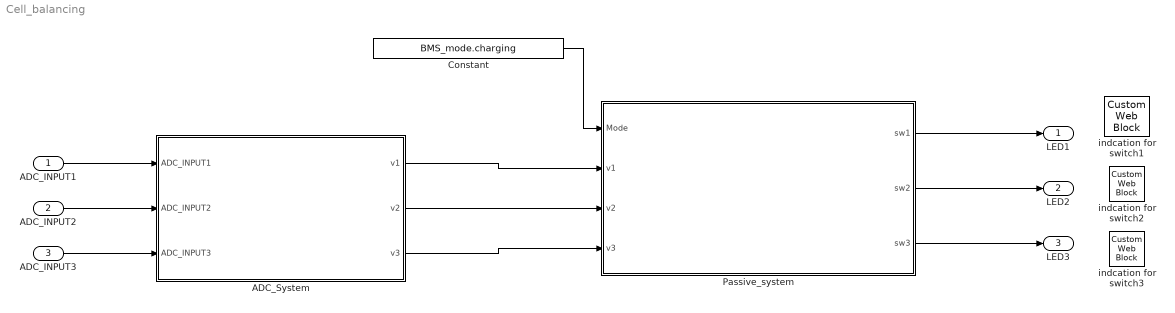
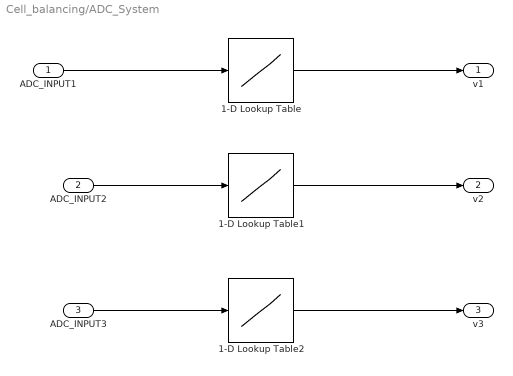
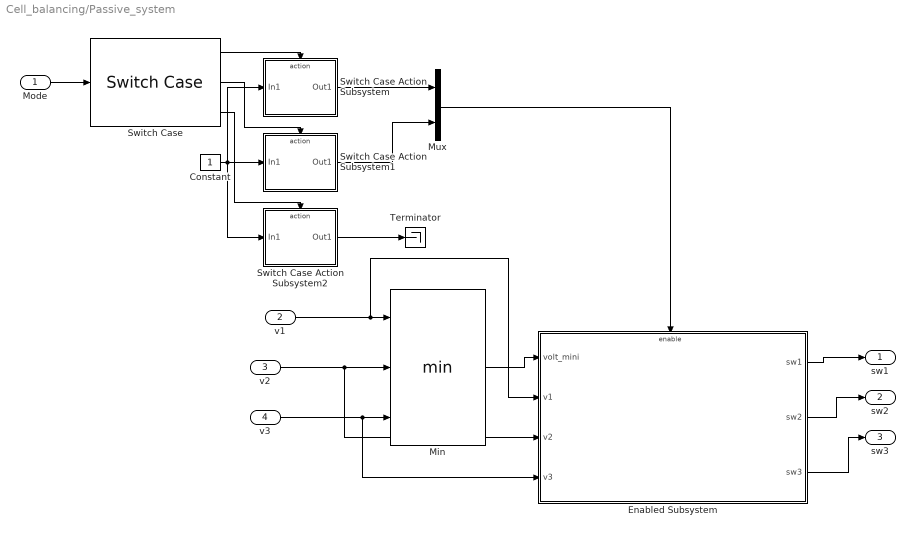
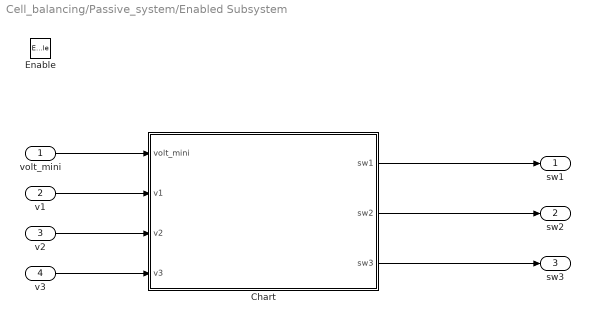
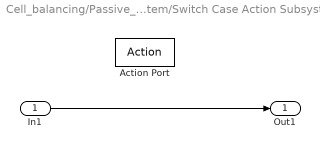
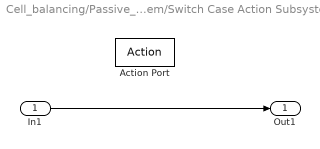
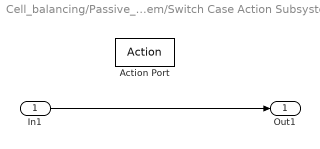
== stateflow chart Cell_balancing/Passive_system/Enabled
Subsystem/Chart ==
  (default) -> (junction 20)
  (junction 20) -> (junction 21) [order 1] : [(volt_mini==v1) ]
  (junction 20) -> (junction 181) [order 2]
  (junction 21) -> (junction 29) : {sw2=1; sw3=1; }
  (junction 181) -> (junction 182) [order 1] : [ (volt_mini==v1)  && ( v2 == (v1 +0.1) ) ]
  (junction 181) -> (junction 22) [order 2]
  (junction 182) -> (junction 183) : {sw2=0;}
  (junction 22) -> (junction 23) [order 1] : [(volt_mini==v1)  && ( v3  == (v1 +0.1) )]
  (junction 22) -> (junction 26) [order 2]
  (junction 23) -> (junction 28) : { sw3=0;}
  (junction 28) -> (junction 26)
  (junction 183) -> (junction 28)
  (junction 29) -> (junction 183)
  (junction 26) -> (junction 48)
  (junction 48) -> (junction 44) [order 1] : [(volt_mini==v2)]
  (junction 48) -> (junction 190) [order 2]
  (junction 44) -> (junction 64) : {sw1=1; sw3=1; }
  (junction 190) -> (junction 191) [order 2] : [(volt_mini==v2)  &&  (v1 == (v2 +0.1) )]
  (junction 190) -> (junction 42) [order 1]
  (junction 191) -> (junction 192) : {sw1=0;}
  (junction 42) -> (junction 43) [order 1] : [(volt_mini==v2)  && ( v3 == (v2 +0.1) )]
  (junction 42) -> (junction 45) [order 2]
  (junction 43) -> (junction 49) : { sw3=0;}
  (junction 192) -> (junction 49)
  (junction 64) -> (junction 192)
  (junction 49) -> (junction 45)
  (junction 45) -> (junction 120)
  (junction 120) -> (junction 111) [order 1] : [(volt_mini==v3)]
  (junction 120) -> (junction 199) [order 2]
  (junction 111) -> (junction 96) : {sw1=1; sw2=1; }
  (junction 199) -> (junction 200) [order 1] : [(volt_mini==v3)  && ( v1 == (v3 +0.1) )]
  (junction 199) -> (junction 117) [order 2]
  (junction 200) -> (junction 201) : {sw1=0;}
  (junction 117) -> (junction 116) [order 1] : [(volt_mini==v3)  && ( v2 == (v3 +0.1) )]
  (junction 117) -> (junction 109) [order 2]
  (junction 116) -> (junction 114) : {sw2=0;}
  (junction 201) -> (junction 114)
  (junction 96) -> (junction 201)
  (junction 114) -> (junction 109)
  (junction 109) -> (junction 208)
  data: sw3 output; volt_mini input; sw1 output; sw2 output; v1 input; v2 input; v3 input

/*
 * File: Cell_balancing.c
 *
 * Code generated for Simulink model 'Cell_balancing'.
 *
 * Model version                  : 1.5
 * Simulink Coder version         : 9.8 (R2022b) 13-May-2022
 * C/C++ source code generated on : Mon Jan  1 09:48:23 2024
 *
 * Target selection: ert.tlc
 * Embedded hardware selection: ARM Compatible->ARM Cortex-M
 * Code generation objectives:
 *    1. Execution efficiency
 *    2. RAM efficiency
 * Validation result: Not run
 */

#include "Cell_balancing.h"
#include "akimaCoefficients_float.h"
#include "akimaDerivative_float.h"
#include "akimaEvaluation_float.h"
#include "akimaFiniteDiffs_float.h"
#include "akimaHermiteBasis_float.h"
#include "akimaStrides.h"
#include "akimaUtils_float.h"
#include "akimaWorkspace.h"
#include "mfl_interp_util.h"
#include <math.h>
#include "rtwtypes.h"
#include <stddef.h>

/* Block signals and states (default storage) */
DW rtDW;

/* External inputs (root inport signals with default storage) */
ExtU rtU;

/* External outputs (root outports fed by signals with default storage) */
ExtY rtY;

/* Real-time model */
static RT_MODEL rtM_;
RT_MODEL *const rtM = &rtM_;

/* Model step function */
void Cell_balancing_step(void)
{
  real32_T AkimaWorkspaceCoeffs_h[48];
  real32_T AkimaWorkspaceCoeffs[45];
  real32_T AkimaWorkspaceCoeffs_f[39];
  real32_T AkimaCoeffs_c[26];
  real32_T AkimaCoeffs[24];
  real32_T AkimaCoeffs_h[20];
  real32_T AkimaWorkspaceEval[6];
  real32_T AkimaWorkspaceEval_m[6];
  real32_T AkimaWorkspaceEval_n[6];
  const real32_T *bpDataSetVar;
  const real32_T *inputDataSetVar;
  real32_T rtb_Min;
  real32_T rtb_uDLookupTable;
  real32_T rtb_uDLookupTable1;
  real32_T rtb_uDLookupTable2;
  uint32_T AkimaWorkspaceCoeffsIndicesVa_0[13];
  uint32_T AkimaWorkspaceCoeffsIndicesVa_1[13];
  uint32_T AkimaWorkspaceCoeffsIndicesVar[13];
  uint32_T AkimaWorkspaceEvalIndicesVar[5];
  uint32_T AkimaWorkspaceEvalIndicesVar_0[5];
  uint32_T AkimaWorkspaceEvalIndicesVar_1[5];

  /* Lookup_n-D: '<S1>/1-D Lookup Table' incorporates:
   *  Inport: '<Root>/ADC_INPUT1'
   */
  bpDataSetVar = &rtConstP.uDLookupTable_bp01Data[0U];
  rtb_uDLookupTable2 = rtU.ADC_INPUT1;
  inputDataSetVar = &rtb_uDLookupTable2;
  akimaFixedGrid_precompute_float(1U, &rtConstP.uDLookupTable_gridSize,
    &bpDataSetVar, &rtConstP.uDLookupTable_tableData[0], &AkimaWorkspaceCoeffs[0],
    &AkimaWorkspaceCoeffsIndicesVar[0], &AkimaCoeffs[0]);
  akimaFixedGrid_interpolate_float(1U, &rtConstP.uDLookupTable_gridSize,
    &bpDataSetVar, 0U, 1U, &AkimaWorkspaceEval[0],
    &AkimaWorkspaceEvalIndicesVar[0], &AkimaCoeffs[0], 1U, &inputDataSetVar,
    NULL, &rtb_uDLookupTable);

  /* Lookup_n-D: '<S1>/1-D Lookup Table1' incorporates:
   *  Inport: '<Root>/ADC_INPUT2'
   */
  bpDataSetVar = &rtConstP.uDLookupTable1_bp01Data[0U];
  rtb_uDLookupTable2 = rtU.ADC_INPUT2;
  inputDataSetVar = &rtb_uDLookupTable2;
  akimaFixedGrid_precompute_float(1U, &rtConstP.uDLookupTable1_gridSize,
    &bpDataSetVar, &rtConstP.uDLookupTable1_tableData[0],
    &AkimaWorkspaceCoeffs_h[0], &AkimaWorkspaceCoeffsIndicesVa_0[0],
    &AkimaCoeffs_c[0]);
  akimaFixedGrid_interpolate_float(1U, &rtConstP.uDLookupTable1_gridSize,
    &bpDataSetVar, 0U, 1U, &AkimaWorkspaceEval_m[0],
    &AkimaWorkspaceEvalIndicesVar_0[0], &AkimaCoeffs_c[0], 1U, &inputDataSetVar,
    NULL, &rtb_uDLookupTable1);

  /* Lookup_n-D: '<S1>/1-D Lookup Table2' incorporates:
   *  Inport: '<Root>/ADC_INPUT3'
   */
  bpDataSetVar = &rtConstP.uDLookupTable2_bp01Data[0U];
  rtb_uDLookupTable2 = rtU.ADC_INPUT3;
  inputDataSetVar = &rtb_uDLookupTable2;
  akimaFixedGrid_precompute_float(1U, &rtConstP.uDLookupTable2_gridSize,
    &bpDataSetVar, &rtConstP.uDLookupTable2_tableData[0],
    &AkimaWorkspaceCoeffs_f[0], &AkimaWorkspaceCoeffsIndicesVa_1[0],
    &AkimaCoeffs_h[0]);
  akimaFixedGrid_interpolate_float(1U, &rtConstP.uDLookupTable2_gridSize,
    &bpDataSetVar, 0U, 1U, &AkimaWorkspaceEval_n[0],
    &AkimaWorkspaceEvalIndicesVar_1[0], &AkimaCoeffs_h[0], 1U, &inputDataSetVar,
    NULL, &rtb_uDLookupTable2);

  /* MinMax: '<S2>/Min' */
  rtb_Min = fminf(fminf(rtb_uDLookupTable, rtb_uDLookupTable1),
                  rtb_uDLookupTable2);

  /* Outputs for IfAction SubSystem: '<S2>/Switch Case Action Subsystem1' incorporates:
   *  ActionPort: '<S5>/Action Port'
   */
  /* SwitchCase: '<S2>/Switch Case' incorporates:
   *  Constant: '<S2>/Constant'
   *  SignalConversion generated from: '<S5>/In1'
   */
  rtDW.In1 = 1.0;

  /* End of Outputs for SubSystem: '<S2>/Switch Case Action Subsystem1' */

  /* Outputs for Enabled SubSystem: '<S2>/Enabled Subsystem' incorporates:
   *  EnablePort: '<S3>/Enable'
   */
  /* Chart: '<S3>/Chart' */
  if (rtb_Min == rtb_uDLookupTable) {
    /* Outport: '<Root>/LED2' */
    rtY.LED2 = 1.0;

    /* Outport: '<Root>/LED3' */
    rtY.LED3 = 1.0;
  } else if ((rtb_Min == rtb_uDLookupTable) && (rtb_uDLookupTable + 0.1F ==
              rtb_uDLookupTable1)) {
    /* Outport: '<Root>/LED2' */
    rtY.LED2 = 0.0;
  } else if ((rtb_Min == rtb_uDLookupTable) && (rtb_uDLookupTable + 0.1F ==
              rtb_uDLookupTable2)) {
    /* Outport: '<Root>/LED3' */
    rtY.LED3 = 0.0;
  }

  if (rtb_Min == rtb_uDLookupTable1) {
    /* Outport: '<Root>/LED1' */
    rtY.LED1 = 1.0;

    /* Outport: '<Root>/LED3' */
    rtY.LED3 = 1.0;
  } else if ((rtb_Min == rtb_uDLookupTable1) && (rtb_uDLookupTable1 + 0.1F ==
              rtb_uDLookupTable2)) {
    /* Outport: '<Root>/LED3' */
    rtY.LED3 = 0.0;
  }

  if (rtb_Min == rtb_uDLookupTable2) {
    /* Outport: '<Root>/LED1' */
    rtY.LED1 = 1.0;

    /* Outport: '<Root>/LED2' */
    rtY.LED2 = 1.0;
  } else if ((rtb_Min == rtb_uDLookupTable2) && (rtb_uDLookupTable2 + 0.1F ==
              rtb_uDLookupTable)) {
    /* Outport: '<Root>/LED1' */
    rtY.LED1 = 0.0;
  } else if ((rtb_Min == rtb_uDLookupTable2) && (rtb_uDLookupTable2 + 0.1F ==
              rtb_uDLookupTable1)) {
    /* Outport: '<Root>/LED2' */
    rtY.LED2 = 0.0;
  }

  /* End of Chart: '<S3>/Chart' */
  /* End of Outputs for SubSystem: '<S2>/Enabled Subsystem' */
}
